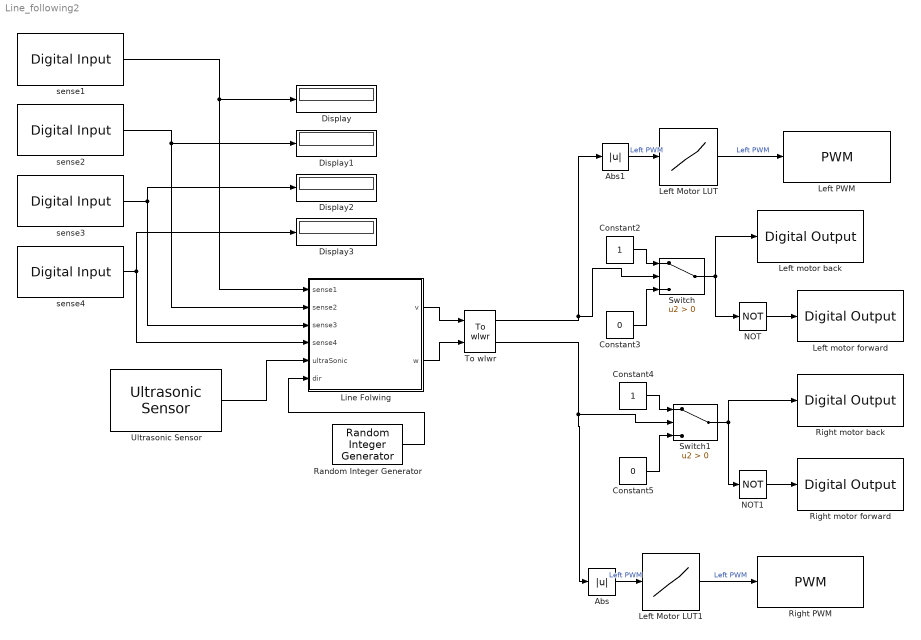
== stateflow chart Line_following2/Line Folwing ==
  state Random
    entry:
    dir;
  state notEnd
    entry:
    v=-0.12;
  state End
    entry:
    v=0;
    w=0;
    i=1;
  state TurnAround
    entry:
    v=0;
    w=3;
  state checkEnd
    entry:
    v=0.12;
  state TurnLeft
    entry:
    v=0.12;
    w=3;
  state TurnRight
    entry:
    v=0.12;
    w=-3;
  state Drive
    entry:
    v=0.12;
    w=0;
    i;
    n;
    data1;
  state CorrectLeft
    entry:
    v=0.12;
    w=3
  state CorrectRight
    entry:
    v=0.12;
    w=-3
  state ObjectDetected
    entry:
    v=0.12;
  state CorrectRight1
    entry:
    w=-3;
  state CorrectLeft1
    entry:
    w=3;
  state TurnAround1
    entry:
    w=3;
  state EndOfLine
    entry:
    v=0;
  state update
    entry:
    data1=ultraSonic;
  state WeOUT
    entry:
    v=0;
    w=0;
  checkEnd -> TurnAround [order 3] : [after(0.5,sec) &&sense1 ==0 && sense2 == 0 && sense3 ==0 && sense4==0 && i==1]
  Random -> TurnLeft [order 2] : [dir==1]
  Random -> TurnRight [order 1] : [dir==0]
  notEnd -> Random : [after(0.5,sec)]
  checkEnd -> notEnd [order 1] : [after(0.5,sec) &&sense1 == 1 && sense2 == 1 && sense3 ==1 && sense4==1 ]
  End -> TurnAround : [after(3,sec)]
  checkEnd -> End [order 2] : [after(0.5,sec) &&sense1 ==0 && sense2 == 0 && sense3 ==0 && sense4==0 && i==0]
  TurnAround -> Drive : [after(2,sec) && sense2 == 0 && sense3 == 0]
  Drive -> checkEnd [order 2] : [sense1 == 0 && sense2 == 0 && sense3 == 0 && sense4==0]
  (default) -> Drive
  TurnRight -> Drive : [after(0.5,sec) && sense2 ==0 && sense3 ==0]
  Drive -> TurnLeft [order 6] : [after(0.5,sec) && sense2 == 0 && sense3 == 0 && sense1 == 0 ]
  TurnLeft -> Drive : [sense2==0 && sense3==0 && after(0.5,sec)]
  Drive -> TurnRight [order 3] : [after(0.5,sec) && sense2 == 0 && sense3 == 0 && sense4 == 0 && sense1==1]
  Drive -> CorrectLeft [order 4] : [sense2==0 && sense3 ==1 && sense1 == 1 &&sense4 ==1]
  Drive -> CorrectRight [order 1] : [sense2==1 && sense3 ==0 && sense1 == 1 &&sense4 ==1]
  CorrectLeft -> Drive : [sense2 ==0 && sense3 ==0]
  CorrectRight -> Drive : [sense2==0 && sense3 == 0]
  TurnAround1 -> Drive : [after(1,sec) && sense2 == 0 && sense3 == 0]
  Drive -> EndOfLine [order 7] : [sense1 == 1 && sense2 == 1 && sense3 == 1 && sense4==1]
  Drive -> ObjectDetected [order 5] : [ultraSonic ~= 0]
  ObjectDetected -> CorrectRight1 [order 2] : [sense2==1 && sense3 ==0]
  ObjectDetected -> CorrectLeft1 [order 3] : [sense2==0 && sense3 ==1]
  CorrectRight1 -> ObjectDetected : [sense2==0 && sense3 == 0]
  CorrectLeft1 -> ObjectDetected : [sense2 ==0 && sense3 ==0]
  ObjectDetected -> EndOfLine [order 1] : [sense1 == 0 && sense4 == 0]
  EndOfLine -> TurnAround1 [order 2] : [after(1,sec)]
  update -> EndOfLine
  EndOfLine -> update [order 1] : [ultraSonic<data1 && ultraSonic~=0 && i==0]
  EndOfLine -> WeOUT [order 3] : [i==1 && ultraSonic==data1]
  data: v output; w output; sense3 input; sense2 input; sense4 input; sense1 input; ultraSonic input; i local =0; dir input; n local =1; data1 local =100

/*
 * Line_following2.c
 *
 * Academic License - for use in teaching, academic research, and meeting
 * course requirements at degree granting institutions only.  Not for
 * government, commercial, or other organizational use.
 *
 * Code generation for model "Line_following2".
 *
 * Model version              : 5.21
 * Simulink Coder version : 9.9 (R2023a) 19-Nov-2022
 * C source code generated on : Thu Oct  5 15:36:20 2023
 *
 * Target selection: ert.tlc
 * Note: GRT includes extra infrastructure and instrumentation for prototyping
 * Embedded hardware selection: ARM Compatible->ARM Cortex
 * Code generation objectives: Unspecified
 * Validation result: Not run
 */

#include "Line_following2.h"
#include "rtwtypes.h"
#include <string.h>
#include "Line_following2_types.h"
#include <math.h>
#include "Line_following2_private.h"

/* Named constants for Chart: '<Root>/Line Folwing' */
#define Line_followi_IN_NO_ACTIVE_CHILD ((uint8_T)0U)
#define Line_following2_CALL_EVENT     (-1)
#define Line_following2_IN_CorrectLeft (1U)
#define Line_following2_IN_CorrectRight (2U)
#define Line_following2_IN_Drive       (3U)
#define Line_following2_IN_End         (4U)
#define Line_following2_IN_Random      (5U)
#define Line_following2_IN_TurnAround  (6U)
#define Line_following2_IN_TurnLeft    (7U)
#define Line_following2_IN_TurnRight   (8U)
#define Line_following2_IN_checkEnd    (9U)
#define Line_following2_IN_notEnd      (10U)

/* Block signals (default storage) */
B_Line_following2_T Line_following2_B;

/* Block states (default storage) */
DW_Line_following2_T Line_following2_DW;

/* Real-time model */
static RT_MODEL_Line_following2_T Line_following2_M_;
RT_MODEL_Line_following2_T *const Line_following2_M = &Line_following2_M_;

/* Forward declaration for local functions */
static real_T Line_following2_rand(void);
static void rate_monotonic_scheduler(void);
uint32_T plook_u32d_binckan(real_T u, const real_T bp[], uint32_T maxIndex)
{
  uint32_T bpIndex;

  /* Prelookup - Index only
     Index Search method: 'binary'
     Interpolation method: 'Use nearest'
     Extrapolation method: 'Clip'
     Use previous index: 'off'
     Use last breakpoint for index at or above upper limit: 'on'
     Remove protection against out-of-range input in generated code: 'off'
   */
  if (u <= bp[0U]) {
    bpIndex = 0U;
  } else if (u < bp[maxIndex]) {
    bpIndex = binsearch_u32d(u, bp, maxIndex >> 1U, maxIndex);
    if ((bpIndex < maxIndex) && (bp[bpIndex + 1U] - u <= u - bp[bpIndex])) {
      bpIndex++;
    }
  } else {
    bpIndex = maxIndex;
  }

  return bpIndex;
}

uint32_T binsearch_u32d(real_T u, const real_T bp[], uint32_T startIndex,
  uint32_T maxIndex)
{
  uint32_T bpIdx;
  uint32_T bpIndex;
  uint32_T iRght;

  /* Binary Search */
  bpIdx = startIndex;
  bpIndex = 0U;
  iRght = maxIndex;
  while (iRght - bpIndex > 1U) {
    if (u < bp[bpIdx]) {
      iRght = bpIdx;
    } else {
      bpIndex = bpIdx;
    }

    bpIdx = (iRght + bpIndex) >> 1U;
  }

  return bpIndex;
}

/*
 * Set which subrates need to run this base step (base rate always runs).
 * This function must be called prior to calling the model step function
 * in order to remember which rates need to run this base step.  The
 * buffering of events allows for overlapping preemption.
 */
void Line_following2_SetEventsForThisBaseStep(boolean_T *eventFlags)
{
  /* Task runs when its counter is zero, computed via rtmStepTask macro */
  eventFlags[1] = ((boolean_T)rtmStepTask(Line_following2_M, 1));
  eventFlags[2] = ((boolean_T)rtmStepTask(Line_following2_M, 2));
}

/*
 *         This function updates active task flag for each subrate
 *         and rate transition flags for tasks that exchange data.
 *         The function assumes rate-monotonic multitasking scheduler.
 *         The function must be called at model base rate so that
 *         the generated code self-manages all its subrates and rate
 *         transition flags.
 */
static void rate_monotonic_scheduler(void)
{
  /* To ensure a deterministic data transfer between two rates,
   * data is transferred at the priority of a fast task and the frequency
   * of the slow task.  The following flags indicate when the data transfer
   * happens.  That is, a rate interaction flag is set true when both rates
   * will run, and false otherwise.
   */

  /* tid 0 shares data with slower tid rates: 1, 2 */
  Line_following2_M->Timing.RateInteraction.TID0_1 =
    (Line_following2_M->Timing.TaskCounters.TID[1] == 0);
  Line_following2_M->Timing.RateInteraction.TID0_2 =
    (Line_following2_M->Timing.TaskCounters.TID[2] == 0);

  /* Compute which subrates run during the next base time step.  Subrates
   * are an integer multiple of the base rate counter.  Therefore, the subtask
   * counter is reset when it reaches its limit (zero means run).
   */
  (Line_following2_M->Timing.TaskCounters.TID[1])++;
  if ((Line_following2_M->Timing.TaskCounters.TID[1]) > 9) {/* Sample time: [0.1s, 0.0s] */
    Line_following2_M->Timing.TaskCounters.TID[1] = 0;
  }

  (Line_following2_M->Timing.TaskCounters.TID[2])++;
  if ((Line_following2_M->Timing.TaskCounters.TID[2]) > 299) {/* Sample time: [3.0s, 0.0s] */
    Line_following2_M->Timing.TaskCounters.TID[2] = 0;
  }
}

real_T rt_roundd_snf(real_T u)
{
  real_T y;
  if (fabs(u) < 4.503599627370496E+15) {
    if (u >= 0.5) {
      y = floor(u + 0.5);
    } else if (u > -0.5) {
      y = u * 0.0;
    } else {
      y = ceil(u - 0.5);
    }
  } else {
    y = u;
  }

  return y;
}

static real_T Line_following2_rand(void)
{
  real_T r;
  int32_T b_kk;
  int32_T exitg1;
  int32_T k;
  uint32_T b_u[2];
  uint32_T mti;
  uint32_T y;
  boolean_T b_isvalid;
  boolean_T exitg2;
  if (Line_following2_DW.method == 4U) {
    k = (int32_T)(Line_following2_DW.state / 127773U);
    mti = (Line_following2_DW.state - (uint32_T)k * 127773U) * 16807U;
    y = 2836U * (uint32_T)k;
    if (mti < y) {
      Line_following2_DW.state = ~(y - mti) & 2147483647U;
    } else {
      Line_following2_DW.state = mti - y;
    }

    r = (real_T)Line_following2_DW.state * 4.6566128752457969E-10;
  } else if (Line_following2_DW.method == 5U) {
    mti = 69069U * Line_following2_DW.state_f[0] + 1234567U;
    y = Line_following2_DW.state_f[1] << 13 ^ Line_following2_DW.state_f[1];
    y ^= y >> 17;
    y ^= y << 5;
    Line_following2_DW.state_f[0] = mti;
    Line_following2_DW.state_f[1] = y;
    r = (real_T)(mti + y) * 2.328306436538696E-10;
  } else {
    /* ========================= COPYRIGHT NOTICE ============================ */
    /*  This is a uniform (0,1) pseudorandom number generator based on:        */
    /*                                                                         */
    /*  A C-program for MT19937, with initialization improved 2002/1/26.       */
    /*  Coded by Takuji Nishimura and Makoto Matsumoto.                        */
    /*                                                                         */
    /*  Copyright (C) 1997 - 2002, Makoto Matsumoto and Takuji Nishimura,      */
    /*  All rights reserved.                                                   */
    /*                                                                         */
    /*  Redistribution and use in source and binary forms, with or without     */
    /*  modification, are permitted provided that the following conditions     */
    /*  are met:                                                               */
    /*                                                                         */
    /*    1. Redistributions of source code must retain the above copyright    */
    /*       notice, this list of conditions and the following disclaimer.     */
    /*                                                                         */
    /*    2. Redistributions in binary form must reproduce the above copyright */
    /*       notice, this list of conditions and the following disclaimer      */
    /*       in the documentation and/or other materials provided with the     */
    /*       distribution.                                                     */
    /*                                                                         */
    /*    3. The names of its contributors may not be used to endorse or       */
    /*       promote products derived from this software without specific      */
    /*       prior written permission.                                         */
    /*                                                                         */
    /*  THIS SOFTWARE IS PROVIDED BY THE COPYRIGHT HOLDERS AND CONTRIBUTORS    */
    /*  "AS IS" AND ANY EXPRESS OR IMPLIED WARRANTIES, INCLUDING, BUT NOT      */
    /*  LIMITED TO, THE IMPLIED WARRANTIES OF MERCHANTABILITY AND FITNESS FOR  */
    /*  A PARTICULAR PURPOSE ARE DISCLAIMED.  IN NO EVENT SHALL THE COPYRIGHT  */
    /*  OWNER OR CONTRIBUTORS BE LIABLE FOR ANY DIRECT, INDIRECT, INCIDENTAL,  */
    /*  SPECIAL, EXEMPLARY, OR CONSEQUENTIAL DAMAGES (INCLUDING, BUT NOT       */
    /*  LIMITED TO, PROCUREMENT OF SUBSTITUTE GOODS OR SERVICES; LOSS OF USE,  */
    /*  DATA, OR PROFITS; OR BUSINESS INTERRUPTION) HOWEVER CAUSED AND ON ANY  */
    /*  THEORY OF LIABILITY, WHETHER IN CONTRACT, STRICT LIABILITY, OR TORT    */
    /*  (INCLUDING  NEGLIGENCE OR OTHERWISE) ARISING IN ANY WAY OUT OF THE USE */
    /*  OF THIS  SOFTWARE, EVEN IF ADVISED OF THE POSSIBILITY OF SUCH DAMAGE.  */
    /*                                                                         */
    /* =============================   END   ================================= */
    do {
      exitg1 = 0;
      for (k = 0; k < 2; k++) {
        mti = Line_following2_DW.state_p[624] + 1U;
        if (Line_following2_DW.state_p[624] + 1U >= 625U) {
          for (b_kk = 0; b_kk < 227; b_kk++) {
            y = (Line_following2_DW.state_p[b_kk + 1] & 2147483647U) |
              (Line_following2_DW.state_p[b_kk] & 2147483648U);
            if ((y & 1U) == 0U) {
              mti = y >> 1U;
            } else {
              mti = y >> 1U ^ 2567483615U;
            }

            Line_following2_DW.state_p[b_kk] = Line_following2_DW.state_p[b_kk +
              397] ^ mti;
          }

          for (b_kk = 0; b_kk < 396; b_kk++) {
            y = (Line_following2_DW.state_p[b_kk + 227] & 2147483648U) |
              (Line_following2_DW.state_p[b_kk + 228] & 2147483647U);
            if ((y & 1U) == 0U) {
              mti = y >> 1U;
            } else {
              mti = y >> 1U ^ 2567483615U;
            }

            Line_following2_DW.state_p[b_kk + 227] =
              Line_following2_DW.state_p[b_kk] ^ mti;
          }

          y = (Line_following2_DW.state_p[623] & 2147483648U) |
            (Line_following2_DW.state_p[0] & 2147483647U);
          if ((y & 1U) == 0U) {
            mti = y >> 1U;
          } else {
            mti = y >> 1U ^ 2567483615U;
          }

          Line_following2_DW.state_p[623] = Line_following2_DW.state_p[396] ^
            mti;
          mti = 1U;
        }

        y = Line_following2_DW.state_p[(int32_T)mti - 1];
        Line_following2_DW.state_p[624] = mti;
        y ^= y >> 11U;
        y ^= y << 7U & 2636928640U;
        y ^= y << 15U & 4022730752U;
        b_u[k] = y >> 18U ^ y;
      }

      r = ((real_T)(b_u[0] >> 5U) * 6.7108864E+7 + (real_T)(b_u[1] >> 6U)) *
        1.1102230246251565E-16;
      if (r == 0.0) {
        if ((Line_following2_DW.state_p[624] >= 1U) &&
            (Line_following2_DW.state_p[624] < 625U)) {
          b_isvalid = true;
        } else {
          b_isvalid = false;
        }

        if (b_isvalid) {
          b_isvalid = false;
          k = 0;
          exitg2 = false;
          while ((!exitg2) && (k + 1 < 625)) {
            if (Line_following2_DW.state_p[k] == 0U) {
              k++;
            } else {
              b_isvalid = true;
              exitg2 = true;
            }
          }
        }

        if (!b_isvalid) {
          mti = 5489U;
          Line_following2_DW.state_p[0] = 5489U;
          for (k = 0; k < 623; k++) {
            mti = ((mti >> 30U ^ mti) * 1812433253U + (uint32_T)k) + 1U;
            Line_following2_DW.state_p[k + 1] = mti;
          }

          Line_following2_DW.state_p[624] = 624U;
        }
      } else {
        exitg1 = 1;
      }
    } while (exitg1 == 0);
  }

  return r;
}

/* Model step function for TID0 */
void Line_following2_step0(void)       /* Sample time: [0.01s, 0.0s] */
{
  codertarget_arduinobase_inter_T *obj;
  real_T rtb_vtow_idx_0;
  real_T u0;
  real_T v;
  uint32_T duration;
  uint8_T tmp;
  boolean_T tmp_0;
  boolean_T tmp_1;

  {                                    /* Sample time: [0.01s, 0.0s] */
    rate_monotonic_scheduler();
  }

  /* RateTransition generated from: '<Root>/Line Folwing' */
  if (Line_following2_M->Timing.RateInteraction.TID0_1) {
    /* RateTransition generated from: '<Root>/Line Folwing' */
    Line_following2_B.TmpRTBAtLineFolwingInport1 =
      Line_following2_DW.TmpRTBAtLineFolwingInport1_Buff;

    /* RateTransition generated from: '<Root>/Line Folwing' */
    Line_following2_B.TmpRTBAtLineFolwingInport2 =
      Line_following2_DW.TmpRTBAtLineFolwingInport2_Buff;

    /* RateTransition generated from: '<Root>/Line Folwing' */
    Line_following2_B.TmpRTBAtLineFolwingInport3 =
      Line_following2_DW.TmpRTBAtLineFolwingInport3_Buff;

    /* RateTransition generated from: '<Root>/Line Folwing' */
    Line_following2_B.TmpRTBAtLineFolwingInport4 =
      Line_following2_DW.TmpRTBAtLineFolwingInport4_Buff;
  }

  /* End of RateTransition generated from: '<Root>/Line Folwing' */

  /* RateTransition generated from: '<Root>/Line Folwing' */
  if (Line_following2_M->Timing.RateInteraction.TID0_2) {
    /* RateTransition generated from: '<Root>/Line Folwing' */
    Line_following2_B.TmpRTBAtLineFolwingInport6 =
      Line_following2_DW.TmpRTBAtLineFolwingInport6_Buff;
  }

  /* End of RateTransition generated from: '<Root>/Line Folwing' */

  /* MATLABSystem: '<Root>/Ultrasonic Sensor' */
  if (Line_following2_DW.obj_bs.TunablePropsChanged) {
    Line_following2_DW.obj_bs.TunablePropsChanged = false;
  }

  MW_UltrasonicRead(&duration, 1, 13, 12, 10);

  /* MATLABSystem: '<Root>/Ultrasonic Sensor' */
  Line_following2_B.UltrasonicSensor = (real_T)duration * 0.000343 / 2.0;

  /* Chart: '<Root>/Line Folwing' */
  if (Line_following2_DW.temporalCounter_i1 < 511U) {
    Line_following2_DW.temporalCounter_i1++;
  }

  Line_following2_DW.sfEvent = Line_following2_CALL_EVENT;
  if (Line_following2_DW.is_active_c1_Line_following2 == 0U) {
    Line_following2_DW.is_active_c1_Line_following2 = 1U;
    Line_following2_DW.is_c1_Line_following2 = Line_following2_IN_Drive;
    Line_following2_DW.temporalCounter_i1 = 0U;
    v = 0.12;
    Line_following2_B.w = 0.0;
  } else {
    switch (Line_following2_DW.is_c1_Line_following2) {
     case Line_following2_IN_CorrectLeft:
      v = 0.12;
      Line_following2_B.w = 3.0;
      if ((!Line_following2_B.TmpRTBAtLineFolwingInport2) &&
          (!Line_following2_B.TmpRTBAtLineFolwingInport1)) {
        Line_following2_DW.is_c1_Line_following2 = Line_following2_IN_Drive;
        Line_following2_DW.temporalCounter_i1 = 0U;
        Line_following2_B.w = 0.0;
      }
      break;

     case Line_following2_IN_CorrectRight:
      v = 0.12;
      Line_following2_B.w = -3.0;
      if ((!Line_following2_B.TmpRTBAtLineFolwingInport2) &&
          (!Line_following2_B.TmpRTBAtLineFolwingInport1)) {
        Line_following2_DW.is_c1_Line_following2 = Line_following2_IN_Drive;
        Line_following2_DW.temporalCounter_i1 = 0U;
        Line_following2_B.w = 0.0;
      }
      break;

     case Line_following2_IN_Drive:
      v = 0.12;
      Line_following2_B.w = 0.0;
      tmp_0 = !Line_following2_B.TmpRTBAtLineFolwingInport1;
      if (Line_following2_B.TmpRTBAtLineFolwingInport2 && tmp_0 &&
          Line_following2_B.TmpRTBAtLineFolwingInport4 &&
          Line_following2_B.TmpRTBAtLineFolwingInport3) {
        Line_following2_DW.is_c1_Line_following2 =
          Line_following2_IN_CorrectRight;
        Line_following2_B.w = -3.0;
      } else {
        tmp_1 = !Line_following2_B.TmpRTBAtLineFolwingInport2;
        tmp_0 = ((Line_following2_DW.temporalCounter_i1 >= 50U) && tmp_1 &&
                 tmp_0);
        if (tmp_0 && (!Line_following2_B.TmpRTBAtLineFolwingInport3) &&
            Line_following2_B.TmpRTBAtLineFolwingInport4) {
          Line_following2_DW.is_c1_Line_following2 =
            Line_following2_IN_TurnRight;
          Line_following2_DW.temporalCounter_i1 = 0U;
          Line_following2_B.w = -3.0;
        } else if (tmp_1 && Line_following2_B.TmpRTBAtLineFolwingInport1 &&
                   Line_following2_B.TmpRTBAtLineFolwingInport4 &&
                   Line_following2_B.TmpRTBAtLineFolwingInport3) {
          Line_following2_DW.is_c1_Line_following2 =
            Line_following2_IN_CorrectLeft;
          Line_following2_B.w = 3.0;
        } else if (tmp_0 && (!Line_following2_B.TmpRTBAtLineFolwingInport4)) {
          Line_following2_DW.is_c1_Line_following2 = Line_following2_IN_TurnLeft;
          Line_following2_DW.temporalCounter_i1 = 0U;
          Line_following2_B.w = 3.0;
        }
      }
      break;

     case Line_following2_IN_End:
      v = 0.0;
      Line_following2_B.w = 0.0;
      if (Line_following2_DW.temporalCounter_i1 >= 300U) {
        Line_following2_DW.is_c1_Line_following2 = Line_following2_IN_TurnAround;
        Line_following2_DW.temporalCounter_i1 = 0U;
        Line_following2_B.w = 3.0;
      }
      break;

     case Line_following2_IN_Random:
      if (!Line_following2_B.TmpRTBAtLineFolwingInport6) {
        Line_following2_DW.is_c1_Line_following2 = Line_following2_IN_TurnRight;
        Line_following2_DW.temporalCounter_i1 = 0U;
        v = 0.12;
        Line_following2_B.w = -3.0;
      } else {
        Line_following2_DW.is_c1_Line_following2 = Line_following2_IN_TurnLeft;
        Line_following2_DW.temporalCounter_i1 = 0U;
        v = 0.12;
        Line_following2_B.w = 3.0;
      }
      break;

     case Line_following2_IN_TurnAround:
      v = 0.0;
      Line_following2_B.w = 3.0;
      if ((Line_following2_DW.temporalCounter_i1 >= 200U) &&
          (!Line_following2_B.TmpRTBAtLineFolwingInport2) &&
          (!Line_following2_B.TmpRTBAtLineFolwingInport1)) {
        Line_following2_DW.is_c1_Line_following2 = Line_following2_IN_Drive;
        Line_following2_DW.temporalCounter_i1 = 0U;
        v = 0.12;
        Line_following2_B.w = 0.0;
      }
      break;

     case Line_following2_IN_TurnLeft:
      v = 0.12;
      Line_following2_B.w = 3.0;
      if ((!Line_following2_B.TmpRTBAtLineFolwingInport2) &&
          (!Line_following2_B.TmpRTBAtLineFolwingInport1) &&
          (Line_following2_DW.temporalCounter_i1 >= 50U)) {
        Line_following2_DW.is_c1_Line_following2 = Line_following2_IN_Drive;
        Line_following2_DW.temporalCounter_i1 = 0U;
        Line_following2_B.w = 0.0;
      }
      break;

     case Line_following2_IN_TurnRight:
      v = 0.12;
      Line_following2_B.w = -3.0;
      if ((Line_following2_DW.temporalCounter_i1 >= 50U) &&
          (!Line_following2_B.TmpRTBAtLineFolwingInport2) &&
          (!Line_following2_B.TmpRTBAtLineFolwingInport1)) {
        Line_following2_DW.is_c1_Line_following2 = Line_following2_IN_Drive;
        Line_following2_DW.temporalCounter_i1 = 0U;
        Line_following2_B.w = 0.0;
      }
      break;

     case Line_following2_IN_checkEnd:
      v = 0.12;
      if ((Line_following2_DW.temporalCounter_i1 >= 50U) &&
          Line_following2_B.TmpRTBAtLineFolwingInport4 &&
          Line_following2_B.TmpRTBAtLineFolwingInport2 &&
          Line_following2_B.TmpRTBAtLineFolwingInport1 &&
          Line_following2_B.TmpRTBAtLineFolwingInport3) {
        Line_following2_DW.is_c1_Line_following2 = Line_following2_IN_notEnd;
        Line_following2_DW.temporalCounter_i1 = 0U;
        v = -0.12;
      } else {
        tmp_0 = ((Line_following2_DW.temporalCounter_i1 >= 50U) &&
                 (!Line_following2_B.TmpRTBAtLineFolwingInport4) &&
                 (!Line_following2_B.TmpRTBAtLineFolwingInport2) &&
                 (!Line_following2_B.TmpRTBAtLineFolwingInport1) &&
                 (!Line_following2_B.TmpRTBAtLineFolwingInport3));
        if (tmp_0) {
          Line_following2_DW.is_c1_Line_following2 = Line_following2_IN_End;
          Line_following2_DW.temporalCounter_i1 = 0U;
          v = 0.0;
          Line_following2_B.w = 0.0;
          Line_following2_DW.i = 1.0;
        } else if (tmp_0) {
          Line_following2_DW.is_c1_Line_following2 =
            Line_following2_IN_TurnAround;
          Line_following2_DW.temporalCounter_i1 = 0U;
          v = 0.0;
          Line_following2_B.w = 3.0;
        }
      }
      break;

     default:
      /* case IN_notEnd: */
      v = -0.12;
      if (Line_following2_DW.temporalCounter_i1 >= 50U) {
        Line_following2_DW.is_c1_Line_following2 = Line_following2_IN_Random;
      }
      break;
    }
  }

  /* End of Chart: '<Root>/Line Folwing' */

  /* Gain: '<S2>/vtow' incorporates:
   *  Gain: '<S2>/change parameters'
   *  SignalConversion generated from: '<S2>/change parameters'
   */
  u0 = 1.0 / Line_following2_P.Towlwr_wheelR;
  rtb_vtow_idx_0 = (Line_following2_P.changeparameters_Gain[0] * v +
                    Line_following2_P.changeparameters_Gain[2] *
                    Line_following2_B.w) * u0;
  v = (Line_following2_P.changeparameters_Gain[1] * v +
       Line_following2_P.changeparameters_Gain[3] * Line_following2_B.w) * u0;

  /* MATLABSystem: '<Root>/Left PWM' */
  obj = &Line_following2_DW.obj_f;
  obj->PWMDriverObj.MW_PWM_HANDLE = MW_PWM_GetHandle(16U);

  /* Lookup_n-D: '<Root>/Left Motor LUT' incorporates:
   *  Abs: '<Root>/Abs1'
   */
  u0 = Line_following2_P.InputPWM[plook_u32d_binckan(fabs(rtb_vtow_idx_0),
    Line_following2_P.WheelSpeed, 172U)];

  /* MATLABSystem: '<Root>/Left PWM' */
  if (!(u0 <= 255.0)) {
    u0 = 255.0;
  }

  if (!(u0 >= 0.0)) {
    u0 = 0.0;
  }

  MW_PWM_SetDutyCycle(Line_following2_DW.obj_f.PWMDriverObj.MW_PWM_HANDLE, u0);

  /* Switch: '<Root>/Switch' incorporates:
   *  Constant: '<Root>/Constant2'
   *  Constant: '<Root>/Constant3'
   */
  if (rtb_vtow_idx_0 > Line_following2_P.Switch_Threshold) {
    rtb_vtow_idx_0 = Line_following2_P.Constant2_Value;
  } else {
    rtb_vtow_idx_0 = Line_following2_P.Constant3_Value;
  }

  /* End of Switch: '<Root>/Switch' */

  /* MATLABSystem: '<Root>/Left motor back' */
  u0 = rt_roundd_snf(rtb_vtow_idx_0);
  if (u0 < 256.0) {
    if (u0 >= 0.0) {
      tmp = (uint8_T)u0;
    } else {
      tmp = 0U;
    }
  } else {
    tmp = MAX_uint8_T;
  }

  writeDigitalPin(5, tmp);

  /* End of MATLABSystem: '<Root>/Left motor back' */

  /* MATLABSystem: '<Root>/Left motor forward' incorporates:
   *  Logic: '<Root>/NOT'
   */
  writeDigitalPin(4, (uint8_T)!(rtb_vtow_idx_0 != 0.0));

  /* MATLABSystem: '<Root>/Right PWM' */
  obj = &Line_following2_DW.obj_p;
  obj->PWMDriverObj.MW_PWM_HANDLE = MW_PWM_GetHandle(17U);

  /* Lookup_n-D: '<Root>/Left Motor LUT1' incorporates:
   *  Abs: '<Root>/Abs'
   */
  u0 = Line_following2_P.InputPWM[plook_u32d_binckan(fabs(v),
    Line_following2_P.WheelSpeed, 172U)];

  /* MATLABSystem: '<Root>/Right PWM' */
  if (!(u0 <= 255.0)) {
    u0 = 255.0;
  }

  if (!(u0 >= 0.0)) {
    u0 = 0.0;
  }

  MW_PWM_SetDutyCycle(Line_following2_DW.obj_p.PWMDriverObj.MW_PWM_HANDLE, u0);

  /* Switch: '<Root>/Switch1' incorporates:
   *  Constant: '<Root>/Constant4'
   *  Constant: '<Root>/Constant5'
   */
  if (v > Line_following2_P.Switch1_Threshold) {
    rtb_vtow_idx_0 = Line_following2_P.Constant4_Value;
  } else {
    rtb_vtow_idx_0 = Line_following2_P.Constant5_Value;
  }

  /* End of Switch: '<Root>/Switch1' */

  /* MATLABSystem: '<Root>/Right motor back' */
  u0 = rt_roundd_snf(rtb_vtow_idx_0);
  if (u0 < 256.0) {
    if (u0 >= 0.0) {
      tmp = (uint8_T)u0;
    } else {
      tmp = 0U;
    }
  } else {
    tmp = MAX_uint8_T;
  }

  writeDigitalPin(7, tmp);

  /* End of MATLABSystem: '<Root>/Right motor back' */

  /* MATLABSystem: '<Root>/Right motor forward' incorporates:
   *  Logic: '<Root>/NOT1'
   */
  writeDigitalPin(6, (uint8_T)!(rtb_vtow_idx_0 != 0.0));

  /* Update absolute time */
  /* The "clockTick0" counts the number of times the code of this task has
   * been executed. The absolute time is the multiplication of "clockTick0"
   * and "Timing.stepSize0". Size of "clockTick0" ensures timer will not
   * overflow during the application lifespan selected.
   * Timer of this task consists of two 32 bit unsigned integers.
   * The two integers represent the low bits Timing.clockTick0 and the high bits
   * Timing.clockTickH0. When the low bit overflows to 0, the high bits increment.
   */
  if (!(++Line_following2_M->Timing.clockTick0)) {
    ++Line_following2_M->Timing.clockTickH0;
  }

  Line_following2_M->Timing.taskTime0 = Line_following2_M->Timing.clockTick0 *
    Line_following2_M->Timing.stepSize0 + Line_following2_M->Timing.clockTickH0 *
    Line_following2_M->Timing.stepSize0 * 4294967296.0;
}

/* Model step function for TID1 */
void Line_following2_step1(void)       /* Sample time: [0.1s, 0.0s] */
{
  /* MATLABSystem: '<Root>/sense1' */
  if (Line_following2_DW.obj_m.SampleTime != Line_following2_P.sense1_SampleTime)
  {
    Line_following2_DW.obj_m.SampleTime = Line_following2_P.sense1_SampleTime;
  }

  /* MATLABSystem: '<Root>/sense1' */
  Line_following2_B.sense1 = readDigitalPin(11);

  /* MATLABSystem: '<Root>/sense2' */
  if (Line_following2_DW.obj_b.SampleTime != Line_following2_P.sense2_SampleTime)
  {
    Line_following2_DW.obj_b.SampleTime = Line_following2_P.sense2_SampleTime;
  }

  /* MATLABSystem: '<Root>/sense2' */
  Line_following2_B.sense2 = readDigitalPin(10);

  /* MATLABSystem: '<Root>/sense3' */
  if (Line_following2_DW.obj_h.SampleTime != Line_following2_P.sense3_SampleTime)
  {
    Line_following2_DW.obj_h.SampleTime = Line_following2_P.sense3_SampleTime;
  }

  /* MATLABSystem: '<Root>/sense3' */
  Line_following2_B.sense3 = readDigitalPin(9);

  /* MATLABSystem: '<Root>/sense4' */
  if (Line_following2_DW.obj.SampleTime != Line_following2_P.sense4_SampleTime)
  {
    Line_following2_DW.obj.SampleTime = Line_following2_P.sense4_SampleTime;
  }

  /* MATLABSystem: '<Root>/sense4' */
  Line_following2_B.sense4 = readDigitalPin(8);

  /* RateTransition generated from: '<Root>/Line Folwing' */
  Line_following2_DW.TmpRTBAtLineFolwingInport3_Buff = Line_following2_B.sense4;

  /* RateTransition generated from: '<Root>/Line Folwing' */
  Line_following2_DW.TmpRTBAtLineFolwingInport1_Buff = Line_following2_B.sense3;

  /* RateTransition generated from: '<Root>/Line Folwing' */
  Line_following2_DW.TmpRTBAtLineFolwingInport2_Buff = Line_following2_B.sense2;

  /* RateTransition generated from: '<Root>/Line Folwing' */
  Line_following2_DW.TmpRTBAtLineFolwingInport4_Buff = Line_following2_B.sense1;

  /* Update absolute time */
  /* The "clockTick1" counts the number of times the code of this task has
   * been executed. The resolution of this integer timer is 0.1, which is the step size
   * of the task. Size of "clockTick1" ensures timer will not overflow during the
   * application lifespan selected.
   * Timer of this task consists of two 32 bit unsigned integers.
   * The two integers represent the low bits Timing.clockTick1 and the high bits
   * Timing.clockTickH1. When the low bit overflows to 0, the high bits increment.
   */
  Line_following2_M->Timing.clockTick1++;
  if (!Line_following2_M->Timing.clockTick1) {
    Line_following2_M->Timing.clockTickH1++;
  }
}

/* Model step function for TID2 */
void Line_following2_step2(void)       /* Sample time: [3.0s, 0.0s] */
{
  real_T b;

  /* MATLABSystem: '<Root>/Random Integer Generator' */
  b = Line_following2_rand();

  /* MATLABSystem: '<Root>/Random Integer Generator' */
  Line_following2_B.RandomIntegerGenerator = (floor(b * 2.0) != 0.0);

  /* RateTransition generated from: '<Root>/Line Folwing' */
  Line_following2_DW.TmpRTBAtLineFolwingInport6_Buff =
    Line_following2_B.RandomIntegerGenerator;

  /* Update absolute time */
  /* The "clockTick2" counts the number of times the code of this task has
   * been executed. The resolution of this integer timer is 3.0, which is the step size
   * of the task. Size of "clockTick2" ensures timer will not overflow during the
   * application lifespan selected.
   * Timer of this task consists of two 32 bit unsigned integers.
   * The two integers represent the low bits Timing.clockTick2 and the high bits
   * Timing.clockTickH2. When the low bit overflows to 0, the high bits increment.
   */
  Line_following2_M->Timing.clockTick2++;
  if (!Line_following2_M->Timing.clockTick2) {
    Line_following2_M->Timing.clockTickH2++;
  }
}
